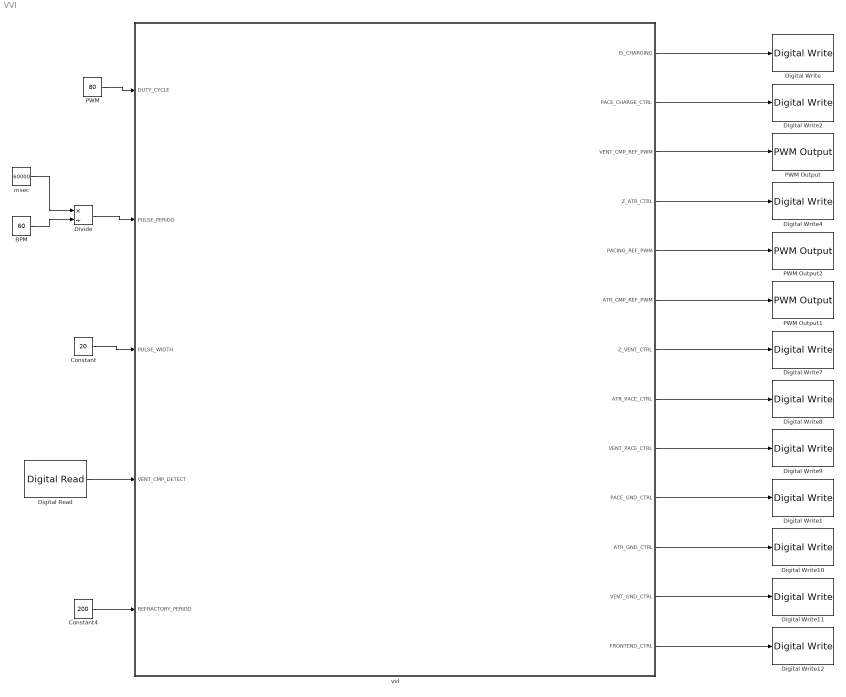
== stateflow chart VVI/vvI ==
  state Charging_C22
    entry:
    PACING_REF_PWM = DUTY_CYCLE
    PACE_CHARGE_CTRL = true
    PACE_GND_CTRL = true
    VENT_PACE_CTRL = false
    Z_ATR_CTRL = false
    Z_VENT_CTRL = false
    ATR_PACE_CTRL = false
    ATR_GND_CTRL = false
    VENT_GND_CTRL = true
    % For LED testing
    IS_CHARGING = true
    VENT_CMP_REF_PWM = DUTY_CYCLE
    FRONTEND_CTRL = true
  state Proxy
    entry:
    PACING_REF_PWM = DUTY_CYCLE
    PACE_CHARGE_CTRL = true
    PACE_GND_CTRL = true
    VENT_PACE_CTRL = false
    Z_ATR_CTRL = false
    Z_VENT_CTRL = false
    ATR_PACE_CTRL = false
    ATR_GND_CTRL = false
    VENT_GND_CTRL = true
    % For LED testing
    IS_CHARGING = true
    VENT_CMP_REF_PWM = DUTY_CYCLE
  state Pacing
    entry:
    PACE_CHARGE_CTRL = false
    PACE_GND_CTRL = true
    ATR_PACE_CTRL = false
    ATR_GND_CTRL = false
    Z_ATR_CTRL = false
    Z_VENT_CTRL = false
    VENT_GND_CTRL = false
    VENT_PACE_CTRL = true
    % For LED testing
    IS_CHARGING = false
  (default) -> Charging_C22
  Charging_C22 -> Proxy [order 1] : [VENT_CMP_DETECT ==  true]{DELAY = REFRACTORY_PERIOD}
  Proxy -> Charging_C22 : [after(DELAY,msec)]
  Charging_C22 -> Pacing [order 2] : [after(PULSE_PERIOD-REFRACTORY_PERIOD,msec)]
  Pacing -> Proxy : [after(PULSE_WIDTH,msec)]{DELAY = REFRACTORY_PERIOD - PULSE_WIDTH }
  data: IS_CHARGING output; PACE_CHARGE_CTRL output; VENT_CMP_REF_PWM output =0; Z_ATR_CTRL output; PACING_REF_PWM output; ATR_CMP_REF_PWM output =0; Z_VENT_CTRL output; ATR_PACE_CTRL output; VENT_PACE_CTRL output; PACE_GND_CTRL output; ATR_GND_CTRL output; VENT_GND_CTRL output; FRONTEND_CTRL output =true; DUTY_CYCLE input; PULSE_PERIOD input; PULSE_WIDTH input; VENT_CMP_DETECT input; DELAY local; REFRACTORY_PERIOD input

/*
 * Academic License - for use in teaching, academic research, and meeting
 * course requirements at degree granting institutions only.  Not for
 * government, commercial, or other organizational use.
 *
 * File: VVI.c
 *
 * Code generated for Simulink model 'VVI'.
 *
 * Model version                  : 1.35
 * Simulink Coder version         : 9.7 (R2022a) 13-Nov-2021
 * C/C++ source code generated on : Fri Oct 21 05:24:30 2022
 *
 * Target selection: ert.tlc
 * Embedded hardware selection: ARM Compatible->ARM Cortex
 * Code generation objectives: Unspecified
 * Validation result: Not run
 */

#include "VVI.h"
#include "rtwtypes.h"
#include <math.h>
#include "VVI_types.h"

/* Named constants for Chart: '<Root>/vvI' */
#define VVI_IN_Charging_C22            ((uint8_T)1U)
#define VVI_IN_Pacing                  ((uint8_T)2U)
#define VVI_IN_Proxy                   ((uint8_T)3U)

/* Block signals (default storage) */
B_VVI_T VVI_B;

/* Block states (default storage) */
DW_VVI_T VVI_DW;

/* Real-time model */
static RT_MODEL_VVI_T VVI_M_;
RT_MODEL_VVI_T *const VVI_M = &VVI_M_;

/* Forward declaration for local functions */
static void VVI_enter_atomic_Charging_C22(boolean_T *VENT_PACE_CTRL, boolean_T
  *ATR_PACE_CTRL, boolean_T *Z_VENT_CTRL, boolean_T *Z_ATR_CTRL, boolean_T
  *PACE_CHARGE_CTRL, boolean_T *VENT_GND_CTRL);
static void VVI_enter_atomic_Proxy(boolean_T *VENT_PACE_CTRL, boolean_T
  *ATR_PACE_CTRL, boolean_T *Z_VENT_CTRL, boolean_T *Z_ATR_CTRL, boolean_T
  *PACE_CHARGE_CTRL, boolean_T *VENT_GND_CTRL);

/* Function for Chart: '<Root>/vvI' */
static void VVI_enter_atomic_Charging_C22(boolean_T *VENT_PACE_CTRL, boolean_T
  *ATR_PACE_CTRL, boolean_T *Z_VENT_CTRL, boolean_T *Z_ATR_CTRL, boolean_T
  *PACE_CHARGE_CTRL, boolean_T *VENT_GND_CTRL)
{
  /* Constant: '<Root>/PWM' */
  VVI_B.PACING_REF_PWM = VVI_P.PWM_Value;
  *PACE_CHARGE_CTRL = true;
  VVI_B.PACE_GND_CTRL = true;
  *VENT_PACE_CTRL = false;
  *Z_ATR_CTRL = false;
  *Z_VENT_CTRL = false;
  *ATR_PACE_CTRL = false;
  VVI_B.ATR_GND_CTRL = false;
  *VENT_GND_CTRL = true;
  VVI_B.IS_CHARGING = true;

  /* Constant: '<Root>/PWM' */
  VVI_B.VENT_CMP_REF_PWM = VVI_P.PWM_Value;
  VVI_B.FRONTEND_CTRL = true;
}

/* Function for Chart: '<Root>/vvI' */
static void VVI_enter_atomic_Proxy(boolean_T *VENT_PACE_CTRL, boolean_T
  *ATR_PACE_CTRL, boolean_T *Z_VENT_CTRL, boolean_T *Z_ATR_CTRL, boolean_T
  *PACE_CHARGE_CTRL, boolean_T *VENT_GND_CTRL)
{
  /* Constant: '<Root>/PWM' */
  VVI_B.PACING_REF_PWM = VVI_P.PWM_Value;
  *PACE_CHARGE_CTRL = true;
  VVI_B.PACE_GND_CTRL = true;
  *VENT_PACE_CTRL = false;
  *Z_ATR_CTRL = false;
  *Z_VENT_CTRL = false;
  *ATR_PACE_CTRL = false;
  VVI_B.ATR_GND_CTRL = false;
  *VENT_GND_CTRL = true;
  VVI_B.IS_CHARGING = true;

  /* Constant: '<Root>/PWM' */
  VVI_B.VENT_CMP_REF_PWM = VVI_P.PWM_Value;
}

/* Model step function */
void VVI_step(void)
{
  boolean_T ATR_PACE_CTRL;
  boolean_T PACE_CHARGE_CTRL;
  boolean_T VENT_GND_CTRL;
  boolean_T VENT_PACE_CTRL;
  boolean_T Z_ATR_CTRL;
  boolean_T Z_VENT_CTRL;
  boolean_T tmp;

  /* MATLABSystem: '<Root>/Digital Read' */
  if (VVI_DW.obj.SampleTime != VVI_P.DigitalRead_SampleTime) {
    VVI_DW.obj.SampleTime = VVI_P.DigitalRead_SampleTime;
  }

  tmp = MW_digitalIO_read(VVI_DW.obj.MW_DIGITALIO_HANDLE);

  /* Chart: '<Root>/vvI' incorporates:
   *  Constant: '<Root>/BPM'
   *  Constant: '<Root>/Constant'
   *  Constant: '<Root>/Constant4'
   *  Constant: '<Root>/msec'
   *  MATLABSystem: '<Root>/Digital Read'
   *  Product: '<Root>/Divide'
   */
  if (VVI_DW.temporalCounter_i1 < MAX_uint32_T) {
    VVI_DW.temporalCounter_i1++;
  }

  if (VVI_DW.is_active_c3_VVI == 0U) {
    VVI_DW.is_active_c3_VVI = 1U;
    VVI_DW.is_c3_VVI = VVI_IN_Charging_C22;
    VVI_DW.temporalCounter_i1 = 0U;
    VVI_enter_atomic_Charging_C22(&VENT_PACE_CTRL, &ATR_PACE_CTRL, &Z_VENT_CTRL,
      &Z_ATR_CTRL, &PACE_CHARGE_CTRL, &VENT_GND_CTRL);
  } else {
    switch (VVI_DW.is_c3_VVI) {
     case VVI_IN_Charging_C22:
      PACE_CHARGE_CTRL = true;
      VVI_B.PACE_GND_CTRL = true;
      VENT_PACE_CTRL = false;
      Z_ATR_CTRL = false;
      Z_VENT_CTRL = false;
      ATR_PACE_CTRL = false;
      VVI_B.ATR_GND_CTRL = false;
      VENT_GND_CTRL = true;
      VVI_B.IS_CHARGING = true;
      VVI_B.FRONTEND_CTRL = true;
      if (tmp) {
        VVI_DW.DELAY = VVI_P.Constant4_Value;
        VVI_DW.is_c3_VVI = VVI_IN_Proxy;
        VVI_DW.temporalCounter_i1 = 0U;
        VVI_enter_atomic_Proxy(&VENT_PACE_CTRL, &ATR_PACE_CTRL, &Z_VENT_CTRL,
          &Z_ATR_CTRL, &PACE_CHARGE_CTRL, &VENT_GND_CTRL);
      } else if (VVI_DW.temporalCounter_i1 >= (uint32_T)ceil(VVI_P.msec_Value /
                  VVI_P.BPM_Value - VVI_P.Constant4_Value)) {
        VVI_DW.is_c3_VVI = VVI_IN_Pacing;
        VVI_DW.temporalCounter_i1 = 0U;
        PACE_CHARGE_CTRL = false;
        VENT_GND_CTRL = false;
        VENT_PACE_CTRL = true;
        VVI_B.IS_CHARGING = false;
      }
      break;

     case VVI_IN_Pacing:
      PACE_CHARGE_CTRL = false;
      VVI_B.PACE_GND_CTRL = true;
      ATR_PACE_CTRL = false;
      VVI_B.ATR_GND_CTRL = false;
      Z_ATR_CTRL = false;
      Z_VENT_CTRL = false;
      VENT_GND_CTRL = false;
      VENT_PACE_CTRL = true;
      VVI_B.IS_CHARGING = false;
      if (VVI_DW.temporalCounter_i1 >= (uint32_T)ceil(VVI_P.Constant_Value)) {
        VVI_DW.DELAY = VVI_P.Constant4_Value - VVI_P.Constant_Value;
        VVI_DW.is_c3_VVI = VVI_IN_Proxy;
        VVI_DW.temporalCounter_i1 = 0U;
        VVI_enter_atomic_Proxy(&VENT_PACE_CTRL, &ATR_PACE_CTRL, &Z_VENT_CTRL,
          &Z_ATR_CTRL, &PACE_CHARGE_CTRL, &VENT_GND_CTRL);
      }
      break;

     default:
      /* case IN_Proxy: */
      PACE_CHARGE_CTRL = true;
      VVI_B.PACE_GND_CTRL = true;
      VENT_PACE_CTRL = false;
      Z_ATR_CTRL = false;
      Z_VENT_CTRL = false;
      ATR_PACE_CTRL = false;
      VVI_B.ATR_GND_CTRL = false;
      VENT_GND_CTRL = true;
      VVI_B.IS_CHARGING = true;
      if (VVI_DW.temporalCounter_i1 >= (uint32_T)ceil(VVI_DW.DELAY)) {
        VVI_DW.is_c3_VVI = VVI_IN_Charging_C22;
        VVI_DW.temporalCounter_i1 = 0U;
        VVI_enter_atomic_Charging_C22(&VENT_PACE_CTRL, &ATR_PACE_CTRL,
          &Z_VENT_CTRL, &Z_ATR_CTRL, &PACE_CHARGE_CTRL, &VENT_GND_CTRL);
      }
      break;
    }
  }

  /* End of Chart: '<Root>/vvI' */

  /* MATLABSystem: '<Root>/Digital Write' */
  MW_digitalIO_write(VVI_DW.obj_hb.MW_DIGITALIO_HANDLE, VVI_B.IS_CHARGING);

  /* MATLABSystem: '<Root>/Digital Write1' */
  MW_digitalIO_write(VVI_DW.obj_m.MW_DIGITALIO_HANDLE, VVI_B.PACE_GND_CTRL);

  /* MATLABSystem: '<Root>/Digital Write10' */
  MW_digitalIO_write(VVI_DW.obj_ii.MW_DIGITALIO_HANDLE, VVI_B.ATR_GND_CTRL);

  /* MATLABSystem: '<Root>/Digital Write11' */
  MW_digitalIO_write(VVI_DW.obj_nv.MW_DIGITALIO_HANDLE, VENT_GND_CTRL);

  /* MATLABSystem: '<Root>/Digital Write12' */
  MW_digitalIO_write(VVI_DW.obj_l.MW_DIGITALIO_HANDLE, VVI_B.FRONTEND_CTRL);

  /* MATLABSystem: '<Root>/Digital Write2' */
  MW_digitalIO_write(VVI_DW.obj_h.MW_DIGITALIO_HANDLE, PACE_CHARGE_CTRL);

  /* MATLABSystem: '<Root>/Digital Write4' */
  MW_digitalIO_write(VVI_DW.obj_b.MW_DIGITALIO_HANDLE, Z_ATR_CTRL);

  /* MATLABSystem: '<Root>/Digital Write7' */
  MW_digitalIO_write(VVI_DW.obj_i.MW_DIGITALIO_HANDLE, Z_VENT_CTRL);

  /* MATLABSystem: '<Root>/Digital Write8' */
  MW_digitalIO_write(VVI_DW.obj_n.MW_DIGITALIO_HANDLE, ATR_PACE_CTRL);

  /* MATLABSystem: '<Root>/Digital Write9' */
  MW_digitalIO_write(VVI_DW.obj_j.MW_DIGITALIO_HANDLE, VENT_PACE_CTRL);

  /* MATLABSystem: '<Root>/PWM Output' */
  MW_PWM_SetDutyCycle(VVI_DW.obj_d.MW_PWM_HANDLE, VVI_B.VENT_CMP_REF_PWM);

  /* MATLABSystem: '<Root>/PWM Output1' */
  MW_PWM_SetDutyCycle(VVI_DW.obj_bs.MW_PWM_HANDLE, VVI_B.ATR_CMP_REF_PWM);

  /* MATLABSystem: '<Root>/PWM Output2' */
  MW_PWM_SetDutyCycle(VVI_DW.obj_a.MW_PWM_HANDLE, VVI_B.PACING_REF_PWM);
}
